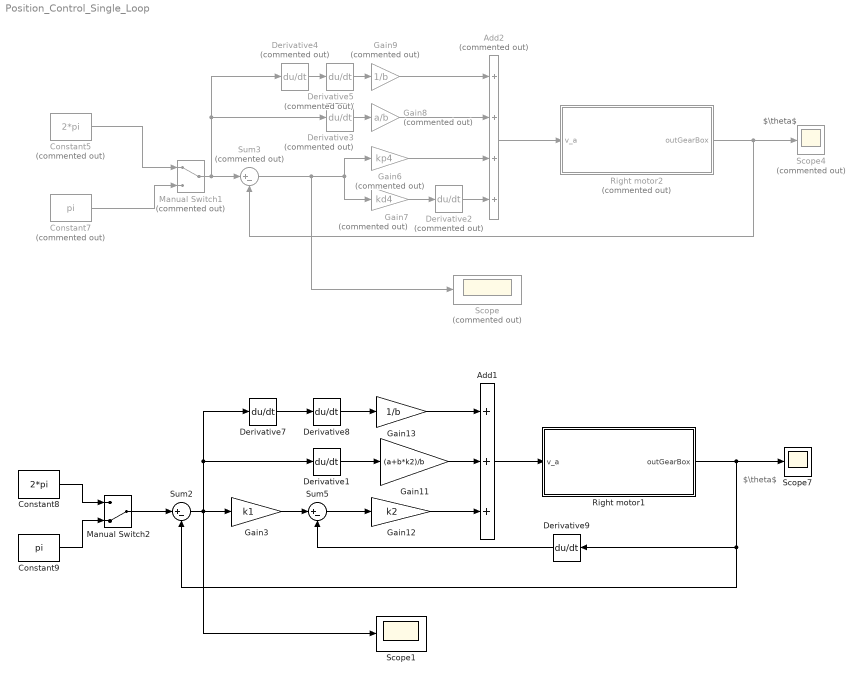
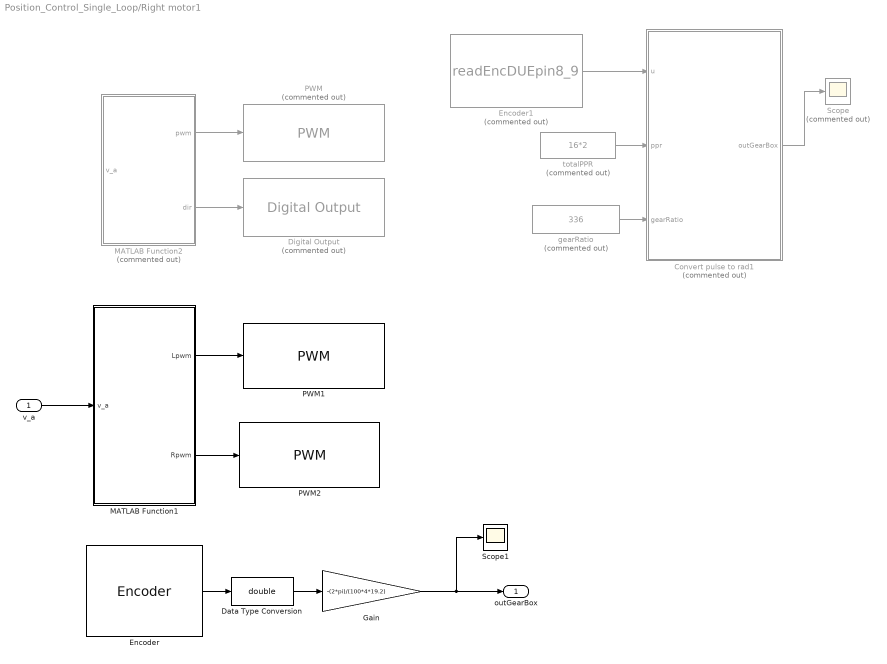
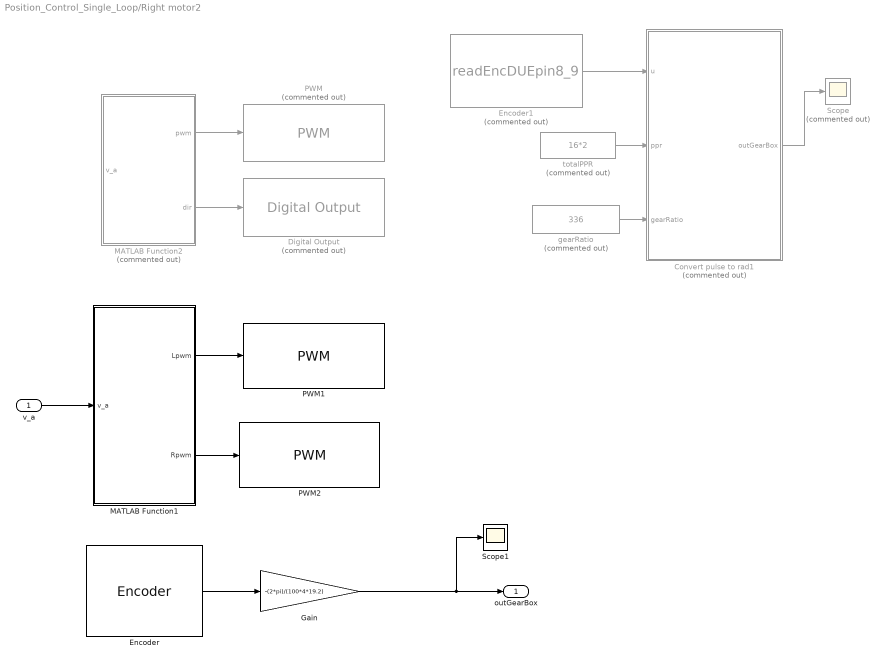
== matlab function Position_Control_Single_Loop/Right motor2/Convert pulse to rad1 ==
function outGearBox = fcn(u,ppr,gearRatio)

persistent counter_num over_flag
if(isempty(counter_num)), counter_num = 0;end
if(isempty(over_flag)), over_flag = 0;end
pulse2radian = 2*pi/ppr; % 1 pulse = ?? radian

if(double(u) - counter_num > 40000), over_flag = over_flag-1;
elseif(double(u) - counter_num < -40000), over_flag = over_flag+1;
end

inGearBox = (double(u)+over_flag*(2^32 -1))*pulse2radian; 
outGearBox = inGearBox/gearRatio;
counter_num = double(u) ;

== matlab function Position_Control_Single_Loop/Right motor2/MATLAB Function2 ==
function [pwm,dir] = fcn(v_a)

vmax = 22.9;
%vmax = 10;
pwm_cal = v_a*254/vmax;
if pwm_cal > 0
    pwm = pwm_cal;
    dir = 0;
elseif pwm_cal < 0
    pwm = abs(pwm_cal);
    dir = 1;
else
    pwm = 0;
    dir = 0;
end

== matlab function Position_Control_Single_Loop/Right motor2/MATLAB Function1 ==
function [Lpwm,Rpwm] = fcn(v_a)

vmax = 22.9;
pwm_cal = v_a*254/vmax;

if pwm_cal > 0
    Lpwm = 0;
    Rpwm = pwm_cal;
elseif pwm_cal < 0
    Lpwm = abs(pwm_cal);
    Rpwm = 0;
else
    Lpwm = 0;
    Rpwm = 0;
end

== matlab function Position_Control_Single_Loop/Right motor1/Convert pulse to rad1 ==
function outGearBox = fcn(u,ppr,gearRatio)

persistent counter_num over_flag
if(isempty(counter_num)), counter_num = 0;end
if(isempty(over_flag)), over_flag = 0;end
pulse2radian = 2*pi/ppr; % 1 pulse = ?? radian

if(double(u) - counter_num > 40000), over_flag = over_flag-1;
elseif(double(u) - counter_num < -40000), over_flag = over_flag+1;
end

inGearBox = (double(u)+over_flag*(2^32 -1))*pulse2radian; 
outGearBox = inGearBox/gearRatio;
counter_num = double(u) ;

== matlab function Position_Control_Single_Loop/Right motor1/MATLAB Function1 ==
function [Lpwm,Rpwm] = fcn(v_a)

vmax = 22.9;
pwm_cal = v_a*254/vmax;

if pwm_cal > 0
    Lpwm = 0;
    Rpwm = pwm_cal;
elseif pwm_cal < 0
    Lpwm = abs(pwm_cal);
    Rpwm = 0;
else
    Lpwm = 0;
    Rpwm = 0;
end

== matlab function Position_Control_Single_Loop/Right motor1/MATLAB Function2 ==
function [pwm,dir] = fcn(v_a)

vmax = 22.9;
%vmax = 10;
pwm_cal = v_a*254/vmax;
if pwm_cal > 0
    pwm = pwm_cal;
    dir = 0;
elseif pwm_cal < 0
    pwm = abs(pwm_cal);
    dir = 1;
else
    pwm = 0;
    dir = 0;
end

/*
 * File: Position_Control_Single_Loop.c
 *
 * Code generated for Simulink model 'Position_Control_Single_Loop'.
 *
 * Model version                  : 1.12
 * Simulink Coder version         : 9.7 (R2022a) 13-Nov-2021
 * C/C++ source code generated on : Mon Jun  5 16:56:52 2023
 *
 * Target selection: ert.tlc
 * Embedded hardware selection: ARM Compatible->ARM Cortex
 * Code generation objectives: Unspecified
 * Validation result: Not run
 */

#include "Position_Control_Single_Loop.h"
#include "rtwtypes.h"
#include <math.h>
#include "Position_Control_Single_Loop_types.h"
#include "rt_nonfinite.h"
#include "Position_Control_Single_Loop_private.h"

/* Block signals (default storage) */
B_Position_Control_Single_Loo_T Position_Control_Single_Loop_B;

/* Block states (default storage) */
DW_Position_Control_Single_Lo_T Position_Control_Single_Loop_DW;

/* Real-time model */
static RT_MODEL_Position_Control_Sin_T Position_Control_Single_Loop_M_;
RT_MODEL_Position_Control_Sin_T *const Position_Control_Single_Loop_M =
  &Position_Control_Single_Loop_M_;

/* Model step function */
void Position_Control_Single_Loop_step(void)
{
  {
    codertarget_arduinobase_int_b_T *obj;
    real_T pwm_cal;
    real_T rtb_Derivative9;
    real_T rtb_Gain11;
    real_T rtb_Gain13;
    real_T *lastU;
    int32_T rtb_Encoder_0;

    /* MATLABSystem: '<S1>/Encoder' */
    if (Position_Control_Single_Loop_DW.obj.SampleTime !=
        Position_Control_Single_Loop_P.Encoder_SampleTime) {
      Position_Control_Single_Loop_DW.obj.SampleTime =
        Position_Control_Single_Loop_P.Encoder_SampleTime;
    }

    if (Position_Control_Single_Loop_DW.obj.TunablePropsChanged) {
      Position_Control_Single_Loop_DW.obj.TunablePropsChanged = false;
    }

    MW_EncoderRead(Position_Control_Single_Loop_DW.obj.Index, &rtb_Encoder_0);

    /* Gain: '<S1>/Gain' incorporates:
     *  DataTypeConversion: '<S1>/Data Type Conversion'
     *  MATLABSystem: '<S1>/Encoder'
     */
    Position_Control_Single_Loop_B.Gain =
      Position_Control_Single_Loop_P.Gain_Gain * (real_T)rtb_Encoder_0;

    /* ManualSwitch: '<Root>/Manual Switch2' incorporates:
     *  Constant: '<Root>/Constant8'
     *  Constant: '<Root>/Constant9'
     */
    if (Position_Control_Single_Loop_P.ManualSwitch2_CurrentSetting == 1) {
      pwm_cal = Position_Control_Single_Loop_P.Constant8_Value;
    } else {
      pwm_cal = Position_Control_Single_Loop_P.Constant9_Value;
    }

    /* End of ManualSwitch: '<Root>/Manual Switch2' */

    /* Sum: '<Root>/Sum2' */
    Position_Control_Single_Loop_B.Sum2 = pwm_cal -
      Position_Control_Single_Loop_B.Gain;

    /* Derivative: '<Root>/Derivative7' incorporates:
     *  Derivative: '<Root>/Derivative1'
     *  Derivative: '<Root>/Derivative8'
     *  Derivative: '<Root>/Derivative9'
     */
    pwm_cal = Position_Control_Single_Loop_M->Timing.t[0];
    if ((Position_Control_Single_Loop_DW.TimeStampA >= pwm_cal) &&
        (Position_Control_Single_Loop_DW.TimeStampB >= pwm_cal)) {
      /* Derivative: '<Root>/Derivative7' */
      Position_Control_Single_Loop_B.Derivative7 = 0.0;
    } else {
      rtb_Derivative9 = Position_Control_Single_Loop_DW.TimeStampA;
      lastU = &Position_Control_Single_Loop_DW.LastUAtTimeA;
      if (Position_Control_Single_Loop_DW.TimeStampA <
          Position_Control_Single_Loop_DW.TimeStampB) {
        if (Position_Control_Single_Loop_DW.TimeStampB < pwm_cal) {
          rtb_Derivative9 = Position_Control_Single_Loop_DW.TimeStampB;
          lastU = &Position_Control_Single_Loop_DW.LastUAtTimeB;
        }
      } else if (Position_Control_Single_Loop_DW.TimeStampA >= pwm_cal) {
        rtb_Derivative9 = Position_Control_Single_Loop_DW.TimeStampB;
        lastU = &Position_Control_Single_Loop_DW.LastUAtTimeB;
      }

      /* Derivative: '<Root>/Derivative7' */
      Position_Control_Single_Loop_B.Derivative7 =
        (Position_Control_Single_Loop_B.Sum2 - *lastU) / (pwm_cal -
        rtb_Derivative9);
    }

    /* End of Derivative: '<Root>/Derivative7' */

    /* Derivative: '<Root>/Derivative8' */
    if ((Position_Control_Single_Loop_DW.TimeStampA_k >= pwm_cal) &&
        (Position_Control_Single_Loop_DW.TimeStampB_a >= pwm_cal)) {
      rtb_Derivative9 = 0.0;
    } else {
      rtb_Derivative9 = Position_Control_Single_Loop_DW.TimeStampA_k;
      lastU = &Position_Control_Single_Loop_DW.LastUAtTimeA_p;
      if (Position_Control_Single_Loop_DW.TimeStampA_k <
          Position_Control_Single_Loop_DW.TimeStampB_a) {
        if (Position_Control_Single_Loop_DW.TimeStampB_a < pwm_cal) {
          rtb_Derivative9 = Position_Control_Single_Loop_DW.TimeStampB_a;
          lastU = &Position_Control_Single_Loop_DW.LastUAtTimeB_d;
        }
      } else if (Position_Control_Single_Loop_DW.TimeStampA_k >= pwm_cal) {
        rtb_Derivative9 = Position_Control_Single_Loop_DW.TimeStampB_a;
        lastU = &Position_Control_Single_Loop_DW.LastUAtTimeB_d;
      }

      rtb_Derivative9 = (Position_Control_Single_Loop_B.Derivative7 - *lastU) /
        (pwm_cal - rtb_Derivative9);
    }

    /* Gain: '<Root>/Gain13' */
    rtb_Gain13 = 1.0 / Position_Control_Single_Loop_P.b * rtb_Derivative9;

    /* Derivative: '<Root>/Derivative1' */
    if ((Position_Control_Single_Loop_DW.TimeStampA_g >= pwm_cal) &&
        (Position_Control_Single_Loop_DW.TimeStampB_c >= pwm_cal)) {
      rtb_Derivative9 = 0.0;
    } else {
      rtb_Derivative9 = Position_Control_Single_Loop_DW.TimeStampA_g;
      lastU = &Position_Control_Single_Loop_DW.LastUAtTimeA_j;
      if (Position_Control_Single_Loop_DW.TimeStampA_g <
          Position_Control_Single_Loop_DW.TimeStampB_c) {
        if (Position_Control_Single_Loop_DW.TimeStampB_c < pwm_cal) {
          rtb_Derivative9 = Position_Control_Single_Loop_DW.TimeStampB_c;
          lastU = &Position_Control_Single_Loop_DW.LastUAtTimeB_k;
        }
      } else if (Position_Control_Single_Loop_DW.TimeStampA_g >= pwm_cal) {
        rtb_Derivative9 = Position_Control_Single_Loop_DW.TimeStampB_c;
        lastU = &Position_Control_Single_Loop_DW.LastUAtTimeB_k;
      }

      rtb_Derivative9 = (Position_Control_Single_Loop_B.Sum2 - *lastU) /
        (pwm_cal - rtb_Derivative9);
    }

    /* Gain: '<Root>/Gain11' */
    rtb_Gain11 = (Position_Control_Single_Loop_P.b *
                  Position_Control_Single_Loop_P.k2 +
                  Position_Control_Single_Loop_P.a) /
      Position_Control_Single_Loop_P.b * rtb_Derivative9;

    /* Derivative: '<Root>/Derivative9' */
    if ((Position_Control_Single_Loop_DW.TimeStampA_b >= pwm_cal) &&
        (Position_Control_Single_Loop_DW.TimeStampB_j >= pwm_cal)) {
      rtb_Derivative9 = 0.0;
    } else {
      rtb_Derivative9 = Position_Control_Single_Loop_DW.TimeStampA_b;
      lastU = &Position_Control_Single_Loop_DW.LastUAtTimeA_e;
      if (Position_Control_Single_Loop_DW.TimeStampA_b <
          Position_Control_Single_Loop_DW.TimeStampB_j) {
        if (Position_Control_Single_Loop_DW.TimeStampB_j < pwm_cal) {
          rtb_Derivative9 = Position_Control_Single_Loop_DW.TimeStampB_j;
          lastU = &Position_Control_Single_Loop_DW.LastUAtTimeB_g;
        }
      } else if (Position_Control_Single_Loop_DW.TimeStampA_b >= pwm_cal) {
        rtb_Derivative9 = Position_Control_Single_Loop_DW.TimeStampB_j;
        lastU = &Position_Control_Single_Loop_DW.LastUAtTimeB_g;
      }

      rtb_Derivative9 = (Position_Control_Single_Loop_B.Gain - *lastU) /
        (pwm_cal - rtb_Derivative9);
    }

    /* MATLAB Function: '<S1>/MATLAB Function1' incorporates:
     *  Gain: '<Root>/Gain12'
     *  Gain: '<Root>/Gain3'
     *  Sum: '<Root>/Add1'
     *  Sum: '<Root>/Sum5'
     */
    pwm_cal = ((Position_Control_Single_Loop_P.k1 *
                Position_Control_Single_Loop_B.Sum2 - rtb_Derivative9) *
               Position_Control_Single_Loop_P.k2 + (rtb_Gain13 + rtb_Gain11)) *
      254.0 / 22.9;
    if (pwm_cal > 0.0) {
      rtb_Gain13 = 0.0;
    } else if (pwm_cal < 0.0) {
      rtb_Gain13 = fabs(pwm_cal);
      pwm_cal = 0.0;
    } else {
      rtb_Gain13 = 0.0;
      pwm_cal = 0.0;
    }

    /* End of MATLAB Function: '<S1>/MATLAB Function1' */

    /* MATLABSystem: '<S1>/PWM1' */
    obj = &Position_Control_Single_Loop_DW.obj_l;
    obj->PWMDriverObj.MW_PWM_HANDLE = MW_PWM_GetHandle(6U);
    if (!(rtb_Gain13 <= 255.0)) {
      rtb_Gain13 = 255.0;
    }

    MW_PWM_SetDutyCycle
      (Position_Control_Single_Loop_DW.obj_l.PWMDriverObj.MW_PWM_HANDLE,
       rtb_Gain13);

    /* End of MATLABSystem: '<S1>/PWM1' */

    /* MATLABSystem: '<S1>/PWM2' */
    obj = &Position_Control_Single_Loop_DW.obj_e;
    obj->PWMDriverObj.MW_PWM_HANDLE = MW_PWM_GetHandle(7U);
    if (!(pwm_cal <= 255.0)) {
      pwm_cal = 255.0;
    }

    MW_PWM_SetDutyCycle
      (Position_Control_Single_Loop_DW.obj_e.PWMDriverObj.MW_PWM_HANDLE, pwm_cal);

    /* End of MATLABSystem: '<S1>/PWM2' */
  }

  {
    real_T *lastU;

    /* Update for Derivative: '<Root>/Derivative7' */
    if (Position_Control_Single_Loop_DW.TimeStampA == (rtInf)) {
      Position_Control_Single_Loop_DW.TimeStampA =
        Position_Control_Single_Loop_M->Timing.t[0];
      lastU = &Position_Control_Single_Loop_DW.LastUAtTimeA;
    } else if (Position_Control_Single_Loop_DW.TimeStampB == (rtInf)) {
      Position_Control_Single_Loop_DW.TimeStampB =
        Position_Control_Single_Loop_M->Timing.t[0];
      lastU = &Position_Control_Single_Loop_DW.LastUAtTimeB;
    } else if (Position_Control_Single_Loop_DW.TimeStampA <
               Position_Control_Single_Loop_DW.TimeStampB) {
      Position_Control_Single_Loop_DW.TimeStampA =
        Position_Control_Single_Loop_M->Timing.t[0];
      lastU = &Position_Control_Single_Loop_DW.LastUAtTimeA;
    } else {
      Position_Control_Single_Loop_DW.TimeStampB =
        Position_Control_Single_Loop_M->Timing.t[0];
      lastU = &Position_Control_Single_Loop_DW.LastUAtTimeB;
    }

    *lastU = Position_Control_Single_Loop_B.Sum2;

    /* End of Update for Derivative: '<Root>/Derivative7' */

    /* Update for Derivative: '<Root>/Derivative8' */
    if (Position_Control_Single_Loop_DW.TimeStampA_k == (rtInf)) {
      Position_Control_Single_Loop_DW.TimeStampA_k =
        Position_Control_Single_Loop_M->Timing.t[0];
      lastU = &Position_Control_Single_Loop_DW.LastUAtTimeA_p;
    } else if (Position_Control_Single_Loop_DW.TimeStampB_a == (rtInf)) {
      Position_Control_Single_Loop_DW.TimeStampB_a =
        Position_Control_Single_Loop_M->Timing.t[0];
      lastU = &Position_Control_Single_Loop_DW.LastUAtTimeB_d;
    } else if (Position_Control_Single_Loop_DW.TimeStampA_k <
               Position_Control_Single_Loop_DW.TimeStampB_a) {
      Position_Control_Single_Loop_DW.TimeStampA_k =
        Position_Control_Single_Loop_M->Timing.t[0];
      lastU = &Position_Control_Single_Loop_DW.LastUAtTimeA_p;
    } else {
      Position_Control_Single_Loop_DW.TimeStampB_a =
        Position_Control_Single_Loop_M->Timing.t[0];
      lastU = &Position_Control_Single_Loop_DW.LastUAtTimeB_d;
    }

    *lastU = Position_Control_Single_Loop_B.Derivative7;

    /* End of Update for Derivative: '<Root>/Derivative8' */

    /* Update for Derivative: '<Root>/Derivative1' */
    if (Position_Control_Single_Loop_DW.TimeStampA_g == (rtInf)) {
      Position_Control_Single_Loop_DW.TimeStampA_g =
        Position_Control_Single_Loop_M->Timing.t[0];
      lastU = &Position_Control_Single_Loop_DW.LastUAtTimeA_j;
    } else if (Position_Control_Single_Loop_DW.TimeStampB_c == (rtInf)) {
      Position_Control_Single_Loop_DW.TimeStampB_c =
        Position_Control_Single_Loop_M->Timing.t[0];
      lastU = &Position_Control_Single_Loop_DW.LastUAtTimeB_k;
    } else if (Position_Control_Single_Loop_DW.TimeStampA_g <
               Position_Control_Single_Loop_DW.TimeStampB_c) {
      Position_Control_Single_Loop_DW.TimeStampA_g =
        Position_Control_Single_Loop_M->Timing.t[0];
      lastU = &Position_Control_Single_Loop_DW.LastUAtTimeA_j;
    } else {
      Position_Control_Single_Loop_DW.TimeStampB_c =
        Position_Control_Single_Loop_M->Timing.t[0];
      lastU = &Position_Control_Single_Loop_DW.LastUAtTimeB_k;
    }

    *lastU = Position_Control_Single_Loop_B.Sum2;

    /* End of Update for Derivative: '<Root>/Derivative1' */

    /* Update for Derivative: '<Root>/Derivative9' */
    if (Position_Control_Single_Loop_DW.TimeStampA_b == (rtInf)) {
      Position_Control_Single_Loop_DW.TimeStampA_b =
        Position_Control_Single_Loop_M->Timing.t[0];
      lastU = &Position_Control_Single_Loop_DW.LastUAtTimeA_e;
    } else if (Position_Control_Single_Loop_DW.TimeStampB_j == (rtInf)) {
      Position_Control_Single_Loop_DW.TimeStampB_j =
        Position_Control_Single_Loop_M->Timing.t[0];
      lastU = &Position_Control_Single_Loop_DW.LastUAtTimeB_g;
    } else if (Position_Control_Single_Loop_DW.TimeStampA_b <
               Position_Control_Single_Loop_DW.TimeStampB_j) {
      Position_Control_Single_Loop_DW.TimeStampA_b =
        Position_Control_Single_Loop_M->Timing.t[0];
      lastU = &Position_Control_Single_Loop_DW.LastUAtTimeA_e;
    } else {
      Position_Control_Single_Loop_DW.TimeStampB_j =
        Position_Control_Single_Loop_M->Timing.t[0];
      lastU = &Position_Control_Single_Loop_DW.LastUAtTimeB_g;
    }

    *lastU = Position_Control_Single_Loop_B.Gain;

    /* End of Update for Derivative: '<Root>/Derivative9' */
  }

  {                                    /* Sample time: [0.0s, 0.0s] */
    extmodeErrorCode_T errorCode = EXTMODE_SUCCESS;
    extmodeSimulationTime_T currentTime = (extmodeSimulationTime_T)
      Position_Control_Single_Loop_M->Timing.t[0];

    /* Trigger External Mode event */
    errorCode = extmodeEvent(0,currentTime);
    if (errorCode != EXTMODE_SUCCESS) {
      /* Code to handle External Mode event errors
         may be added here */
    }
  }

  {                                    /* Sample time: [0.01s, 0.0s] */
    extmodeErrorCode_T errorCode = EXTMODE_SUCCESS;
    extmodeSimulationTime_T currentTime = (extmodeSimulationTime_T)
      ((Position_Control_Single_Loop_M->Timing.clockTick1) * 0.01);

    /* Trigger External Mode event */
    errorCode = extmodeEvent(1,currentTime);
    if (errorCode != EXTMODE_SUCCESS) {
      /* Code to handle External Mode event errors
         may be added here */
    }
  }

  /* Update absolute time for base rate */
  /* The "clockTick0" counts the number of times the code of this task has
   * been executed. The absolute time is the multiplication of "clockTick0"
   * and "Timing.stepSize0". Size of "clockTick0" ensures timer will not
   * overflow during the application lifespan selected.
   */
  Position_Control_Single_Loop_M->Timing.t[0] =
    ((time_T)(++Position_Control_Single_Loop_M->Timing.clockTick0)) *
    Position_Control_Single_Loop_M->Timing.stepSize0;

  {
    /* Update absolute timer for sample time: [0.01s, 0.0s] */
    /* The "clockTick1" counts the number of times the code of this task has
     * been executed. The resolution of this integer timer is 0.01, which is the step size
     * of the task. Size of "clockTick1" ensures timer will not overflow during the
     * application lifespan selected.
     */
    Position_Control_Single_Loop_M->Timing.clockTick1++;
  }
}
